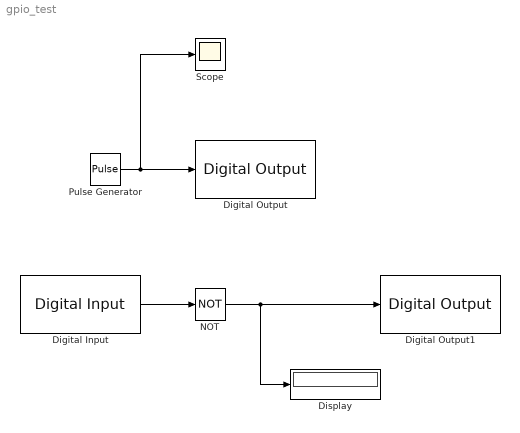
/*
 * Academic License - for use in teaching, academic research, and meeting
 * course requirements at degree granting institutions only.  Not for
 * government, commercial, or other organizational use.
 *
 * File: gpio_test.c
 *
 * Code generated for Simulink model 'gpio_test'.
 *
 * Model version                  : 1.5
 * Simulink Coder version         : 23.2 (R2023b) 01-Aug-2023
 * C/C++ source code generated on : Thu Feb  1 08:56:10 2024
 *
 * Target selection: ert.tlc
 * Embedded hardware selection: Atmel->AVR
 * Code generation objectives: Unspecified
 * Validation result: Not run
 */

#include "gpio_test.h"
#include "rtwtypes.h"
#include "gpio_test_private.h"
#include <math.h>

/* Block signals (default storage) */
B_gpio_test_T gpio_test_B;

/* Block states (default storage) */
DW_gpio_test_T gpio_test_DW;

/* Real-time model */
static RT_MODEL_gpio_test_T gpio_test_M_;
RT_MODEL_gpio_test_T *const gpio_test_M = &gpio_test_M_;
static void rate_monotonic_scheduler(void);

/*
 * Set which subrates need to run this base step (base rate always runs).
 * This function must be called prior to calling the model step function
 * in order to remember which rates need to run this base step.  The
 * buffering of events allows for overlapping preemption.
 */
void gpio_test_SetEventsForThisBaseStep(boolean_T *eventFlags)
{
  /* Task runs when its counter is zero, computed via rtmStepTask macro */
  eventFlags[1] = ((boolean_T)rtmStepTask(gpio_test_M, 1));
}

/*
 *         This function updates active task flag for each subrate
 *         and rate transition flags for tasks that exchange data.
 *         The function assumes rate-monotonic multitasking scheduler.
 *         The function must be called at model base rate so that
 *         the generated code self-manages all its subrates and rate
 *         transition flags.
 */
static void rate_monotonic_scheduler(void)
{
  /* Compute which subrates run during the next base time step.  Subrates
   * are an integer multiple of the base rate counter.  Therefore, the subtask
   * counter is reset when it reaches its limit (zero means run).
   */
  (gpio_test_M->Timing.TaskCounters.TID[1])++;
  if ((gpio_test_M->Timing.TaskCounters.TID[1]) > 19) {/* Sample time: [2.0s, 0.0s] */
    gpio_test_M->Timing.TaskCounters.TID[1] = 0;
  }
}

real_T rt_roundd_snf(real_T u)
{
  real_T y;
  if (fabs(u) < 4.503599627370496E+15) {
    if (u >= 0.5) {
      y = floor(u + 0.5);
    } else if (u > -0.5) {
      y = u * 0.0;
    } else {
      y = ceil(u - 0.5);
    }
  } else {
    y = u;
  }

  return y;
}

/* Model step function for TID0 */
void gpio_test_step0(void)             /* Sample time: [0.1s, 0.0s] */
{
  boolean_T c_value;

  {                                    /* Sample time: [0.1s, 0.0s] */
    rate_monotonic_scheduler();
  }

  /* MATLABSystem: '<Root>/Digital Input' */
  if (gpio_test_DW.obj.SampleTime != gpio_test_P.DigitalInput_SampleTime) {
    gpio_test_DW.obj.SampleTime = gpio_test_P.DigitalInput_SampleTime;
  }

  c_value = readDigitalPin(3);

  /* Logic: '<Root>/NOT' incorporates:
   *  MATLABSystem: '<Root>/Digital Input'
   * */
  gpio_test_B.NOT = !c_value;

  /* MATLABSystem: '<Root>/Digital Output1' */
  writeDigitalPin(12, (uint8_T)gpio_test_B.NOT);

  /* Update absolute time */
  /* The "clockTick0" counts the number of times the code of this task has
   * been executed. The absolute time is the multiplication of "clockTick0"
   * and "Timing.stepSize0". Size of "clockTick0" ensures timer will not
   * overflow during the application lifespan selected.
   */
  gpio_test_M->Timing.taskTime0 =
    ((time_T)(++gpio_test_M->Timing.clockTick0)) * gpio_test_M->Timing.stepSize0;
}

/* Model step function for TID1 */
void gpio_test_step1(void)             /* Sample time: [2.0s, 0.0s] */
{
  real_T tmp;
  uint8_T tmp_0;

  /* DiscretePulseGenerator: '<Root>/Pulse Generator' */
  gpio_test_B.PulseGenerator = (gpio_test_DW.clockTickCounter <
    gpio_test_P.PulseGenerator_Duty) && (gpio_test_DW.clockTickCounter >= 0L) ?
    gpio_test_P.PulseGenerator_Amp : 0.0;

  /* DiscretePulseGenerator: '<Root>/Pulse Generator' */
  if (gpio_test_DW.clockTickCounter >= gpio_test_P.PulseGenerator_Period - 1.0)
  {
    gpio_test_DW.clockTickCounter = 0L;
  } else {
    gpio_test_DW.clockTickCounter++;
  }

  /* MATLABSystem: '<Root>/Digital Output' */
  tmp = rt_roundd_snf(gpio_test_B.PulseGenerator);
  if (tmp < 256.0) {
    if (tmp >= 0.0) {
      tmp_0 = (uint8_T)tmp;
    } else {
      tmp_0 = 0U;
    }
  } else {
    tmp_0 = MAX_uint8_T;
  }

  writeDigitalPin(13, tmp_0);

  /* End of MATLABSystem: '<Root>/Digital Output' */

  /* Update absolute time */
  /* The "clockTick1" counts the number of times the code of this task has
   * been executed. The resolution of this integer timer is 2.0, which is the step size
   * of the task. Size of "clockTick1" ensures timer will not overflow during the
   * application lifespan selected.
   */
  gpio_test_M->Timing.clockTick1++;
}
